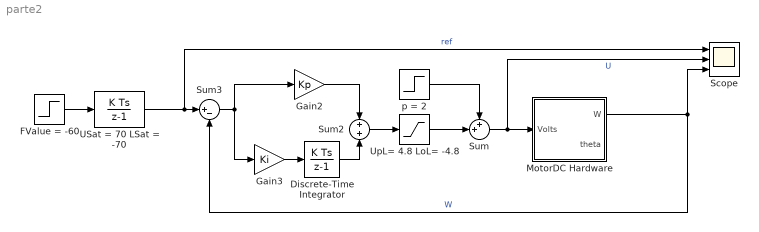
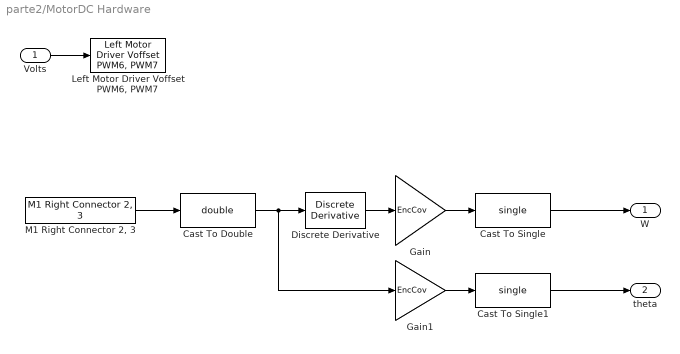
/*
 * Academic License - for use in teaching, academic research, and meeting
 * course requirements at degree granting institutions only.  Not for
 * government, commercial, or other organizational use.
 *
 * File: parte2.c
 *
 * Code generated for Simulink model 'parte2'.
 *
 * Model version                  : 14.7
 * Simulink Coder version         : 9.6 (R2021b) 14-May-2021
 * C/C++ source code generated on : Sat Mar 26 14:38:13 2022
 *
 * Target selection: ert.tlc
 * Embedded hardware selection: Atmel->AVR
 * Code generation objectives: Unspecified
 * Validation result: Not run
 */

#include "parte2.h"
#include "parte2_private.h"

/* Block signals (default storage) */
BlockIO_parte2 parte2_B;

/* Block states (default storage) */
D_Work_parte2 parte2_DWork;

/* Real-time model */
static RT_MODEL_parte2 parte2_M_;
RT_MODEL_parte2 *const parte2_M = &parte2_M_;

/* Model step function */
void parte2_step(void)
{
  /* local block i/o variables */
  real_T rtb_TSamp;
  real_T rtb_Gain3;
  codertarget_arduinobase_interna *obj;
  real_T rtb_Sum3;
  real_T rtb_Switch2;
  real_T rtb_conversiontodutycycleconv_1;
  real_T tmp;
  int32_T rtb_M1RightConnector23_0;
  int16_T rtb_conversiontodutycycleconv_0;
  int16_T rtb_conversiontodutycycleconver;

  /* MATLABSystem: '<S1>/M1 Right Connector 2, 3' */
  /*         %% Define output properties */
  /*  Call: int enc_output(int enc) */
  rtb_M1RightConnector23_0 = enc_output(0.0);

  /* SampleTimeMath: '<S2>/TSamp' incorporates:
   *  DataTypeConversion: '<S1>/Cast To Double'
   *  MATLABSystem: '<S1>/M1 Right Connector 2, 3'
   *
   * About '<S2>/TSamp':
   *  y = u * K where K = 1 / ( w * Ts )
   */
  rtb_TSamp = (real_T)rtb_M1RightConnector23_0 * parte2_P.TSamp_WtEt;

  /* Sum: '<Root>/Sum3' incorporates:
   *  DataTypeConversion: '<S1>/Cast To Single'
   *  DiscreteIntegrator: '<Root>/USat = 70 LSat = -70'
   *  Gain: '<S1>/Gain'
   *  Sum: '<S2>/Diff'
   *  UnitDelay: '<S2>/UD'
   *
   * Block description for '<S2>/Diff':
   *
   *  Add in CPU
   *
   * Block description for '<S2>/UD':
   *
   *  Store in Global RAM
   */
  rtb_Sum3 = parte2_DWork.USat70LSat70_DSTATE - (real32_T)((rtb_TSamp -
    parte2_DWork.UD_DSTATE) * parte2_P.EncCov);

  /* Sum: '<Root>/Sum2' incorporates:
   *  DiscreteIntegrator: '<Root>/Discrete-Time Integrator'
   *  Gain: '<Root>/Gain2'
   */
  rtb_Switch2 = parte2_P.Kp * rtb_Sum3 +
    parte2_DWork.DiscreteTimeIntegrator_DSTATE;

  /* Step: '<Root>/p = 2' incorporates:
   *  Step: '<Root>/FValue = -60'
   */
  tmp = parte2_M->Timing.t[0];
  if (tmp < parte2_P.p2_Time) {
    rtb_conversiontodutycycleconv_1 = parte2_P.p2_Y0;
  } else {
    rtb_conversiontodutycycleconv_1 = parte2_P.p2_YFinal;
  }

  /* End of Step: '<Root>/p = 2' */

  /* Saturate: '<Root>/UpL= 4.8 LoL= -4.8' */
  if (rtb_Switch2 > parte2_P.UpL48LoL48_UpperSat) {
    rtb_Switch2 = parte2_P.UpL48LoL48_UpperSat;
  } else if (rtb_Switch2 < parte2_P.UpL48LoL48_LowerSat) {
    rtb_Switch2 = parte2_P.UpL48LoL48_LowerSat;
  }

  /* End of Saturate: '<Root>/UpL= 4.8 LoL= -4.8' */

  /* Gain: '<S3>/conversion to duty cycle (convert to int) denominator is motor driver voltage' incorporates:
   *  Sum: '<Root>/Sum'
   */
  rtb_conversiontodutycycleconv_1 = floor(255.0 /
    parte2_P.LeftMotorDriverVoffsetPWM6PWM_a * (rtb_conversiontodutycycleconv_1
    + rtb_Switch2));
  if (rtIsNaN(rtb_conversiontodutycycleconv_1) || rtIsInf
      (rtb_conversiontodutycycleconv_1)) {
    rtb_conversiontodutycycleconv_1 = 0.0;
  } else {
    rtb_conversiontodutycycleconv_1 = fmod(rtb_conversiontodutycycleconv_1,
      65536.0);
  }

  rtb_conversiontodutycycleconver = rtb_conversiontodutycycleconv_1 < 0.0 ?
    -(int16_T)(uint16_T)-rtb_conversiontodutycycleconv_1 : (int16_T)(uint16_T)
    rtb_conversiontodutycycleconv_1;

  /* End of Gain: '<S3>/conversion to duty cycle (convert to int) denominator is motor driver voltage' */

  /* Abs: '<S3>/Abs1' */
  if (rtb_conversiontodutycycleconver < 0) {
    rtb_conversiontodutycycleconv_0 = -rtb_conversiontodutycycleconver;
  } else {
    rtb_conversiontodutycycleconv_0 = rtb_conversiontodutycycleconver;
  }

  /* End of Abs: '<S3>/Abs1' */

  /* Sum: '<S3>/Add3' incorporates:
   *  Constant: '<S3>/Constant1'
   */
  rtb_Switch2 = parte2_P.LeftMotorDriverVoffsetPWM6PWM7_ /
    parte2_P.LeftMotorDriverVoffsetPWM6PWM_a * 255.0 + (real_T)
    rtb_conversiontodutycycleconv_0;

  /* Saturate: '<S3>/Saturation 0 to 255' */
  if (rtb_Switch2 > parte2_P.Saturation0to255_UpperSat) {
    rtb_Switch2 = parte2_P.Saturation0to255_UpperSat;
  } else if (rtb_Switch2 < parte2_P.Saturation0to255_LowerSat) {
    rtb_Switch2 = parte2_P.Saturation0to255_LowerSat;
  }

  /* End of Saturate: '<S3>/Saturation 0 to 255' */

  /* Abs: '<S3>/Abs2' incorporates:
   *  Constant: '<S3>/Constant4'
   *  Sum: '<S3>/Add2'
   */
  rtb_Switch2 = fabs(parte2_P.Constant4_Value - rtb_Switch2);

  /* MATLABSystem: '<S3>/PWM' */
  obj = &parte2_DWork.obj_n;
  obj->PWMDriverObj.MW_PWM_HANDLE = MW_PWM_GetHandle(7UL);

  /* Switch: '<S3>/Switch1' incorporates:
   *  Constant: '<S3>/Constant4'
   */
  if (rtb_conversiontodutycycleconver >= parte2_P.Switch1_Threshold) {
    rtb_conversiontodutycycleconv_1 = rtb_Switch2;
  } else {
    rtb_conversiontodutycycleconv_1 = parte2_P.Constant4_Value;
  }

  /* End of Switch: '<S3>/Switch1' */

  /* DataTypeConversion: '<S3>/Data Type  Conversion1' */
  rtb_conversiontodutycycleconv_1 = floor(rtb_conversiontodutycycleconv_1);
  if (rtIsNaN(rtb_conversiontodutycycleconv_1) || rtIsInf
      (rtb_conversiontodutycycleconv_1)) {
    rtb_conversiontodutycycleconv_1 = 0.0;
  } else {
    rtb_conversiontodutycycleconv_1 = fmod(rtb_conversiontodutycycleconv_1,
      256.0);
  }

  /* MATLABSystem: '<S3>/PWM' incorporates:
   *  DataTypeConversion: '<S3>/Data Type  Conversion1'
   */
  MW_PWM_SetDutyCycle(parte2_DWork.obj_n.PWMDriverObj.MW_PWM_HANDLE, (real_T)
                      (rtb_conversiontodutycycleconv_1 < 0.0 ? (int16_T)(uint8_T)
                       -(int8_T)(uint8_T)-rtb_conversiontodutycycleconv_1 :
                       (int16_T)(uint8_T)rtb_conversiontodutycycleconv_1));

  /* MATLABSystem: '<S3>/PWM1' */
  obj = &parte2_DWork.obj;
  obj->PWMDriverObj.MW_PWM_HANDLE = MW_PWM_GetHandle(6UL);

  /* Switch: '<S3>/Switch2' incorporates:
   *  Constant: '<S3>/Constant4'
   */
  if (rtb_conversiontodutycycleconver >= parte2_P.Switch2_Threshold) {
    rtb_Switch2 = parte2_P.Constant4_Value;
  }

  /* End of Switch: '<S3>/Switch2' */

  /* DataTypeConversion: '<S3>/Data Type  Conversion5' */
  rtb_conversiontodutycycleconv_1 = floor(rtb_Switch2);
  if (rtIsNaN(rtb_conversiontodutycycleconv_1) || rtIsInf
      (rtb_conversiontodutycycleconv_1)) {
    rtb_conversiontodutycycleconv_1 = 0.0;
  } else {
    rtb_conversiontodutycycleconv_1 = fmod(rtb_conversiontodutycycleconv_1,
      256.0);
  }

  /* MATLABSystem: '<S3>/PWM1' incorporates:
   *  DataTypeConversion: '<S3>/Data Type  Conversion5'
   */
  MW_PWM_SetDutyCycle(parte2_DWork.obj.PWMDriverObj.MW_PWM_HANDLE, (real_T)
                      (rtb_conversiontodutycycleconv_1 < 0.0 ? (int16_T)(uint8_T)
                       -(int8_T)(uint8_T)-rtb_conversiontodutycycleconv_1 :
                       (int16_T)(uint8_T)rtb_conversiontodutycycleconv_1));

  /* Gain: '<Root>/Gain3' */
  rtb_Gain3 = parte2_P.Ki * rtb_Sum3;

  /* Step: '<Root>/FValue = -60' */
  if (tmp < parte2_P.FValue60_Time) {
    /* Step: '<Root>/FValue = -60' */
    parte2_B.FValue60 = parte2_P.FValue60_Y0;
  } else {
    /* Step: '<Root>/FValue = -60' */
    parte2_B.FValue60 = parte2_P.FValue60_YFinal;
  }

  /* Update for DiscreteIntegrator: '<Root>/Discrete-Time Integrator' */
  parte2_DWork.DiscreteTimeIntegrator_DSTATE +=
    parte2_P.DiscreteTimeIntegrator_gainval * rtb_Gain3;

  /* Update for DiscreteIntegrator: '<Root>/USat = 70 LSat = -70' */
  parte2_DWork.USat70LSat70_DSTATE += parte2_P.USat70LSat70_gainval *
    parte2_B.FValue60;
  if (parte2_DWork.USat70LSat70_DSTATE >= parte2_P.USat70LSat70_UpperSat) {
    parte2_DWork.USat70LSat70_DSTATE = parte2_P.USat70LSat70_UpperSat;
  } else if (parte2_DWork.USat70LSat70_DSTATE <= parte2_P.USat70LSat70_LowerSat)
  {
    parte2_DWork.USat70LSat70_DSTATE = parte2_P.USat70LSat70_LowerSat;
  }

  /* End of Update for DiscreteIntegrator: '<Root>/USat = 70 LSat = -70' */

  /* Update for UnitDelay: '<S2>/UD'
   *
   * Block description for '<S2>/UD':
   *
   *  Store in Global RAM
   */
  parte2_DWork.UD_DSTATE = rtb_TSamp;

  /* Update absolute time for base rate */
  /* The "clockTick0" counts the number of times the code of this task has
   * been executed. The absolute time is the multiplication of "clockTick0"
   * and "Timing.stepSize0". Size of "clockTick0" ensures timer will not
   * overflow during the application lifespan selected.
   */
  parte2_M->Timing.t[0] =
    ((time_T)(++parte2_M->Timing.clockTick0)) * parte2_M->Timing.stepSize0;

  {
    /* Update absolute timer for sample time: [0.03s, 0.0s] */
    /* The "clockTick1" counts the number of times the code of this task has
     * been executed. The resolution of this integer timer is 0.03, which is the step size
     * of the task. Size of "clockTick1" ensures timer will not overflow during the
     * application lifespan selected.
     */
    parte2_M->Timing.clockTick1++;
  }
}
